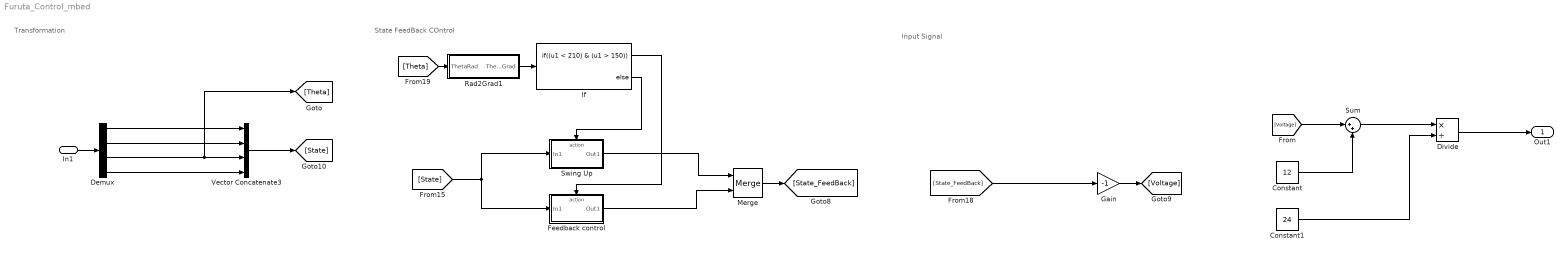
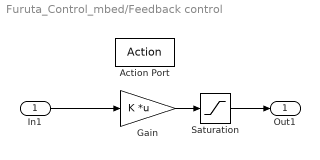
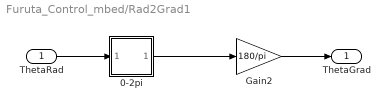
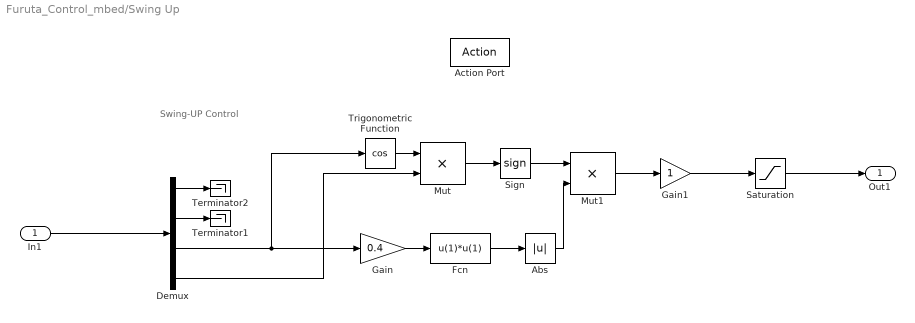
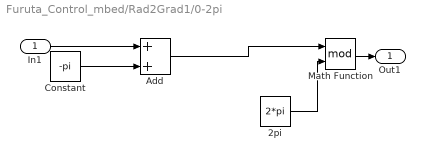
/*
 * Furuta_Control_mbed.c
 *
 * Code generation for model "Furuta_Control_mbed".
 *
 * Model version              : 1.22
 * Simulink Coder version : 8.12 (R2017a) 16-Feb-2017
 * C source code generated on : Wed Oct 17 19:32:09 2018
 *
 * Target selection: grt.tlc
 * Note: GRT includes extra infrastructure and instrumentation for prototyping
 * Embedded hardware selection: Intel->x86-64 (Windows64)
 * Code generation objectives: Unspecified
 * Validation result: Not run
 */

#include "Furuta_Control_mbed.h"
#include "Furuta_Control_mbed_private.h"

/* External inputs (root inport signals with auto storage) */
ExtU_Furuta_Control_mbed_T Furuta_Control_mbed_U;

/* External outputs (root outports fed by signals with auto storage) */
ExtY_Furuta_Control_mbed_T Furuta_Control_mbed_Y;

/* Real-time model */
RT_MODEL_Furuta_Control_mbed_T Furuta_Control_mbed_M_;
RT_MODEL_Furuta_Control_mbed_T *const Furuta_Control_mbed_M =
  &Furuta_Control_mbed_M_;
real_T rt_modd_snf(real_T u0, real_T u1)
{
  real_T y;
  boolean_T yEq;
  real_T q;
  y = u0;
  if (!((!rtIsNaN(u0)) && (!rtIsInf(u0)) && ((!rtIsNaN(u1)) && (!rtIsInf(u1)))))
  {
    if (u1 != 0.0) {
      y = (rtNaN);
    }
  } else if (u0 == 0.0) {
    y = u1 * 0.0;
  } else {
    if (u1 != 0.0) {
      y = fmod(u0, u1);
      yEq = (y == 0.0);
      if ((!yEq) && (u1 > floor(u1))) {
        q = fabs(u0 / u1);
        yEq = (fabs(q - floor(q + 0.5)) <= DBL_EPSILON * q);
      }

      if (yEq) {
        y = u1 * 0.0;
      } else {
        if ((u0 < 0.0) != (u1 < 0.0)) {
          y += u1;
        }
      }
    }
  }

  return y;
}

/* Model step function */
void Furuta_Control_mbed_step(void)
{
  real_T rtb_Gain2;
  real_T u;

  /* Gain: '<S2>/Gain2' incorporates:
   *  Constant: '<S4>/2pi'
   *  Constant: '<S4>/Constant'
   *  Inport: '<Root>/In1'
   *  Math: '<S4>/Math Function'
   *  Sum: '<S4>/Add'
   */
  rtb_Gain2 = rt_modd_snf(Furuta_Control_mbed_U.In1 +
    Furuta_Control_mbed_P.Constant_Value, Furuta_Control_mbed_P.upi_Value) *
    Furuta_Control_mbed_P.Gain2_Gain;

  /* If: '<Root>/If' */
  if ((rtb_Gain2 < 210.0) && (rtb_Gain2 > 150.0)) {
    /* Outputs for IfAction SubSystem: '<Root>/Feedback control' incorporates:
     *  ActionPort: '<S1>/Action Port'
     */
    /* Gain: '<S1>/Gain' incorporates:
     *  Inport: '<Root>/In1'
     */
    rtb_Gain2 = ((Furuta_Control_mbed_P.K[0] * Furuta_Control_mbed_U.In1 +
                  Furuta_Control_mbed_P.K[1] * Furuta_Control_mbed_U.In1) +
                 Furuta_Control_mbed_P.K[2] * Furuta_Control_mbed_U.In1) +
      Furuta_Control_mbed_P.K[3] * Furuta_Control_mbed_U.In1;

    /* Saturate: '<S1>/Saturation' incorporates:
     *  Gain: '<S1>/Gain'
     */
    if (rtb_Gain2 > Furuta_Control_mbed_P.Saturation_UpperSat) {
      rtb_Gain2 = Furuta_Control_mbed_P.Saturation_UpperSat;
    } else {
      if (rtb_Gain2 < Furuta_Control_mbed_P.Saturation_LowerSat) {
        rtb_Gain2 = Furuta_Control_mbed_P.Saturation_LowerSat;
      }
    }

    /* End of Saturate: '<S1>/Saturation' */
    /* End of Outputs for SubSystem: '<Root>/Feedback control' */
  } else {
    /* Outputs for IfAction SubSystem: '<Root>/Swing Up' incorporates:
     *  ActionPort: '<S3>/Action Port'
     */
    /* Gain: '<S3>/Gain' incorporates:
     *  Inport: '<Root>/In1'
     */
    rtb_Gain2 = Furuta_Control_mbed_P.Gain_Gain * Furuta_Control_mbed_U.In1;

    /* Fcn: '<S3>/Fcn' */
    rtb_Gain2 *= rtb_Gain2;

    /* Abs: '<S3>/Abs' */
    rtb_Gain2 = fabs(rtb_Gain2);

    /* Product: '<S3>/Mut' incorporates:
     *  Inport: '<Root>/In1'
     *  Trigonometry: '<S3>/Trigonometric Function'
     */
    u = cos(Furuta_Control_mbed_U.In1) * Furuta_Control_mbed_U.In1;

    /* Signum: '<S3>/Sign' */
    if (u < 0.0) {
      u = -1.0;
    } else if (u > 0.0) {
      u = 1.0;
    } else {
      if (u == 0.0) {
        u = 0.0;
      }
    }

    /* End of Signum: '<S3>/Sign' */

    /* Gain: '<S3>/Gain1' incorporates:
     *  Product: '<S3>/Mut1'
     */
    rtb_Gain2 = u * rtb_Gain2 * Furuta_Control_mbed_P.Gain1_Gain;

    /* Saturate: '<S3>/Saturation' */
    if (rtb_Gain2 > Furuta_Control_mbed_P.Saturation_UpperSat_c) {
      rtb_Gain2 = Furuta_Control_mbed_P.Saturation_UpperSat_c;
    } else {
      if (rtb_Gain2 < Furuta_Control_mbed_P.Saturation_LowerSat_b) {
        rtb_Gain2 = Furuta_Control_mbed_P.Saturation_LowerSat_b;
      }
    }

    /* End of Saturate: '<S3>/Saturation' */
    /* End of Outputs for SubSystem: '<Root>/Swing Up' */
  }

  /* End of If: '<Root>/If' */

  /* Outport: '<Root>/Out1' incorporates:
   *  Constant: '<Root>/Constant'
   *  Constant: '<Root>/Constant1'
   *  Gain: '<Root>/Gain'
   *  Product: '<Root>/Divide'
   *  Sum: '<Root>/Sum'
   */
  Furuta_Control_mbed_Y.Out1 = (Furuta_Control_mbed_P.Gain_Gain_a * rtb_Gain2 +
    Furuta_Control_mbed_P.Constant_Value_d) /
    Furuta_Control_mbed_P.Constant1_Value;

  /* Matfile logging */
  rt_UpdateTXYLogVars(Furuta_Control_mbed_M->rtwLogInfo,
                      (&Furuta_Control_mbed_M->Timing.taskTime0));

  /* signal main to stop simulation */
  {                                    /* Sample time: [0.001s, 0.0s] */
    if ((rtmGetTFinal(Furuta_Control_mbed_M)!=-1) &&
        !((rtmGetTFinal(Furuta_Control_mbed_M)-
           Furuta_Control_mbed_M->Timing.taskTime0) >
          Furuta_Control_mbed_M->Timing.taskTime0 * (DBL_EPSILON))) {
      rtmSetErrorStatus(Furuta_Control_mbed_M, "Simulation finished");
    }
  }

  /* Update absolute time for base rate */
  /* The "clockTick0" counts the number of times the code of this task has
   * been executed. The absolute time is the multiplication of "clockTick0"
   * and "Timing.stepSize0". Size of "clockTick0" ensures timer will not
   * overflow during the application lifespan selected.
   * Timer of this task consists of two 32 bit unsigned integers.
   * The two integers represent the low bits Timing.clockTick0 and the high bits
   * Timing.clockTickH0. When the low bit overflows to 0, the high bits increment.
   */
  if (!(++Furuta_Control_mbed_M->Timing.clockTick0)) {
    ++Furuta_Control_mbed_M->Timing.clockTickH0;
  }

  Furuta_Control_mbed_M->Timing.taskTime0 =
    Furuta_Control_mbed_M->Timing.clockTick0 *
    Furuta_Control_mbed_M->Timing.stepSize0 +
    Furuta_Control_mbed_M->Timing.clockTickH0 *
    Furuta_Control_mbed_M->Timing.stepSize0 * 4294967296.0;
}
